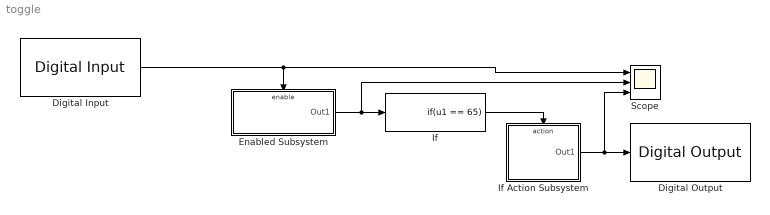
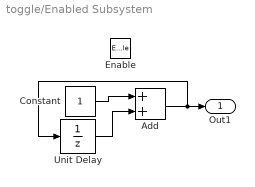
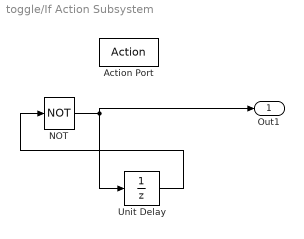
/*
 * File: toggle.c
 *
 * Code generated for Simulink model 'toggle'.
 *
 * Model version                  : 1.19
 * Simulink Coder version         : 9.8 (R2022b) 13-May-2022
 * C/C++ source code generated on : Mon Mar 18 03:56:46 2024
 *
 * Target selection: ert.tlc
 * Embedded hardware selection: Atmel->AVR
 * Code generation objectives: Unspecified
 * Validation result: Not run
 */

#include "toggle.h"
#include "rtwtypes.h"
#include "toggle_private.h"

/* Block signals (default storage) */
B_toggle_T toggle_B;

/* Block states (default storage) */
DW_toggle_T toggle_DW;

/* Real-time model */
static RT_MODEL_toggle_T toggle_M_;
RT_MODEL_toggle_T *const toggle_M = &toggle_M_;
static void rate_monotonic_scheduler(void);

/*
 * Set which subrates need to run this base step (base rate always runs).
 * This function must be called prior to calling the model step function
 * in order to remember which rates need to run this base step.  The
 * buffering of events allows for overlapping preemption.
 */
void toggle_SetEventsForThisBaseStep(boolean_T *eventFlags)
{
  /* Task runs when its counter is zero, computed via rtmStepTask macro */
  eventFlags[1] = ((boolean_T)rtmStepTask(toggle_M, 1));
}

/*
 *         This function updates active task flag for each subrate
 *         and rate transition flags for tasks that exchange data.
 *         The function assumes rate-monotonic multitasking scheduler.
 *         The function must be called at model base rate so that
 *         the generated code self-manages all its subrates and rate
 *         transition flags.
 */
static void rate_monotonic_scheduler(void)
{
  /* Compute which subrates run during the next base time step.  Subrates
   * are an integer multiple of the base rate counter.  Therefore, the subtask
   * counter is reset when it reaches its limit (zero means run).
   */
  (toggle_M->Timing.TaskCounters.TID[1])++;
  if ((toggle_M->Timing.TaskCounters.TID[1]) > 99) {/* Sample time: [0.1s, 0.0s] */
    toggle_M->Timing.TaskCounters.TID[1] = 0;
  }
}

/* Model step function for TID0 */
void toggle_step0(void)                /* Sample time: [0.001s, 0.0s] */
{
  {                                    /* Sample time: [0.001s, 0.0s] */
    rate_monotonic_scheduler();
  }

  /* Update absolute time */
  /* The "clockTick0" counts the number of times the code of this task has
   * been executed. The absolute time is the multiplication of "clockTick0"
   * and "Timing.stepSize0". Size of "clockTick0" ensures timer will not
   * overflow during the application lifespan selected.
   */
  toggle_M->Timing.taskTime0 =
    ((time_T)(++toggle_M->Timing.clockTick0)) * toggle_M->Timing.stepSize0;
}

/* Model step function for TID1 */
void toggle_step1(void)                /* Sample time: [0.1s, 0.0s] */
{
  /* Reset subsysRan breadcrumbs */
  srClearBC(toggle_DW.EnabledSubsystem_SubsysRanBC);

  /* Reset subsysRan breadcrumbs */
  srClearBC(toggle_DW.IfActionSubsystem_SubsysRanBC);

  /* MATLABSystem: '<Root>/Digital Input' */
  if (toggle_DW.obj.SampleTime != toggle_P.DigitalInput_SampleTime) {
    toggle_DW.obj.SampleTime = toggle_P.DigitalInput_SampleTime;
  }

  /* MATLABSystem: '<Root>/Digital Input' */
  toggle_B.DigitalInput = readDigitalPin(7);

  /* Outputs for Enabled SubSystem: '<Root>/Enabled Subsystem' incorporates:
   *  EnablePort: '<S1>/Enable'
   */
  if (toggle_B.DigitalInput) {
    if (!toggle_DW.EnabledSubsystem_MODE) {
      /* InitializeConditions for UnitDelay: '<S1>/Unit Delay' */
      toggle_DW.UnitDelay_DSTATE = toggle_P.UnitDelay_InitialCondition;
      toggle_DW.EnabledSubsystem_MODE = true;
    }

    /* Sum: '<S1>/Add' incorporates:
     *  Constant: '<S1>/Constant'
     *  UnitDelay: '<S1>/Unit Delay'
     */
    toggle_B.Add = toggle_P.Constant_Value + toggle_DW.UnitDelay_DSTATE;

    /* Update for UnitDelay: '<S1>/Unit Delay' */
    toggle_DW.UnitDelay_DSTATE = toggle_B.Add;
    srUpdateBC(toggle_DW.EnabledSubsystem_SubsysRanBC);
  } else if (toggle_DW.EnabledSubsystem_MODE) {
    /* Disable for Sum: '<S1>/Add' incorporates:
     *  Outport: '<S1>/Out1'
     */
    toggle_B.Add = toggle_P.Out1_Y0;
    toggle_DW.EnabledSubsystem_MODE = false;
  }

  /* End of Outputs for SubSystem: '<Root>/Enabled Subsystem' */

  /* If: '<Root>/If' */
  if (toggle_B.Add == 65.0) {
    /* Outputs for IfAction SubSystem: '<Root>/If Action Subsystem' incorporates:
     *  ActionPort: '<S2>/Action Port'
     */
    /* Logic: '<S2>/NOT' incorporates:
     *  UnitDelay: '<S2>/Unit Delay'
     */
    toggle_B.NOT = !toggle_DW.UnitDelay_DSTATE_j;

    /* Update for UnitDelay: '<S2>/Unit Delay' */
    toggle_DW.UnitDelay_DSTATE_j = toggle_B.NOT;

    /* End of Outputs for SubSystem: '<Root>/If Action Subsystem' */

    /* Update for IfAction SubSystem: '<Root>/If Action Subsystem' incorporates:
     *  ActionPort: '<S2>/Action Port'
     */
    /* Update for If: '<Root>/If' */
    srUpdateBC(toggle_DW.IfActionSubsystem_SubsysRanBC);

    /* End of Update for SubSystem: '<Root>/If Action Subsystem' */
  }

  /* End of If: '<Root>/If' */

  /* MATLABSystem: '<Root>/Digital Output' */
  writeDigitalPin(8, (uint8_T)toggle_B.NOT);

  /* Update absolute time */
  /* The "clockTick1" counts the number of times the code of this task has
   * been executed. The resolution of this integer timer is 0.1, which is the step size
   * of the task. Size of "clockTick1" ensures timer will not overflow during the
   * application lifespan selected.
   */
  toggle_M->Timing.clockTick1++;
}
